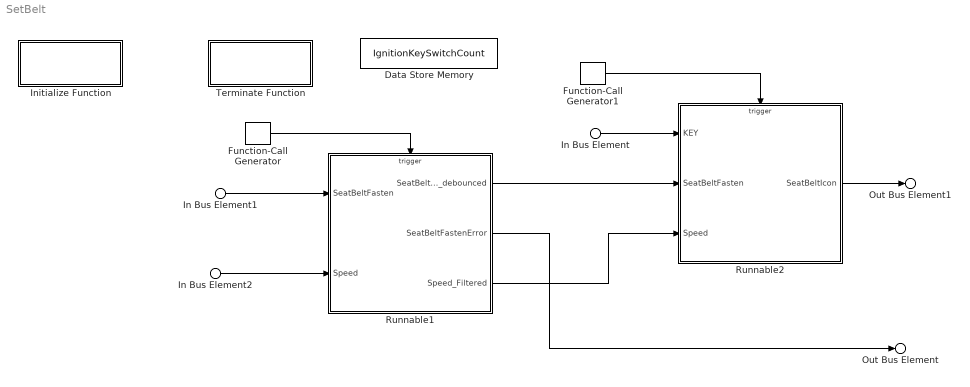
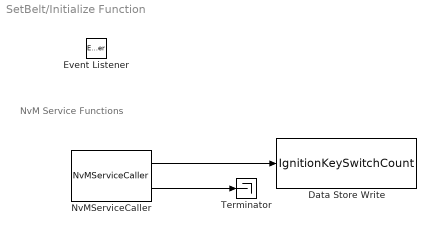
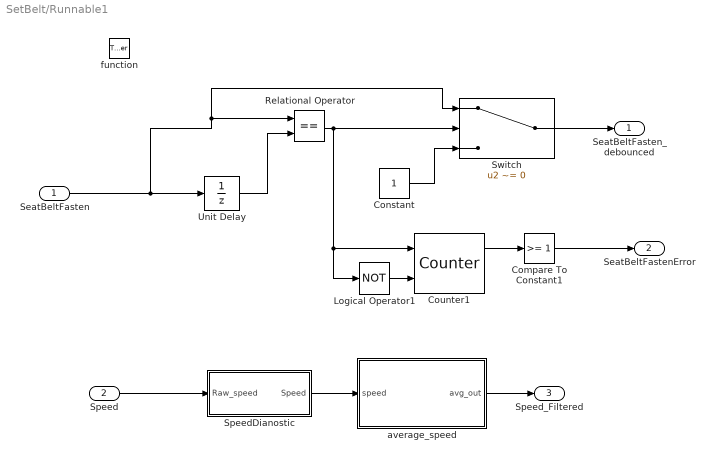
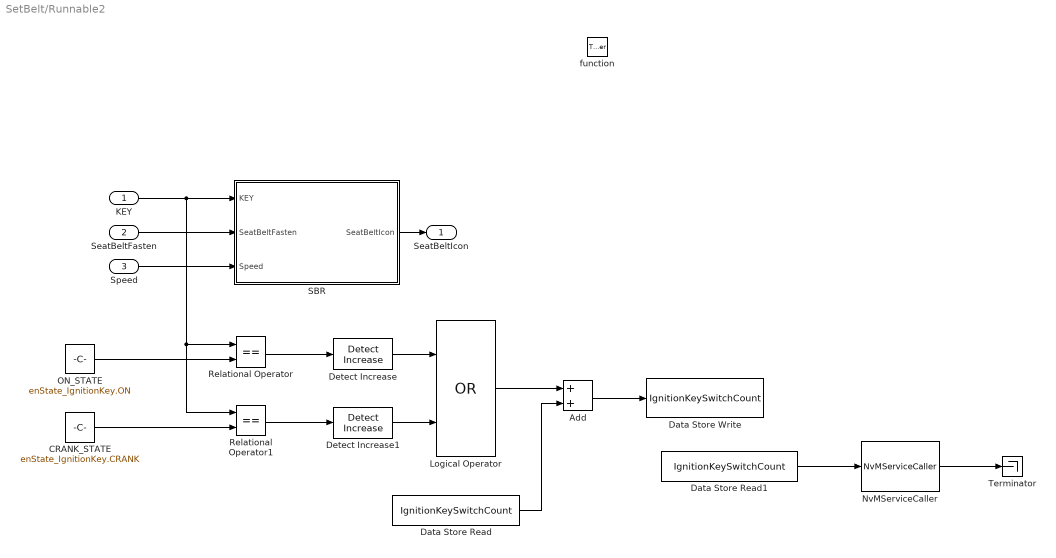
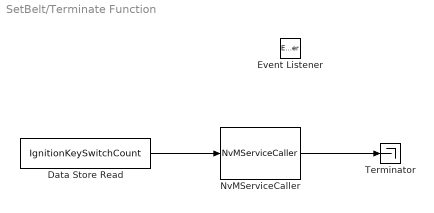
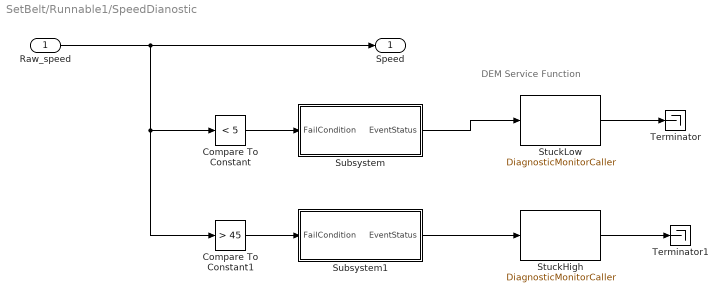
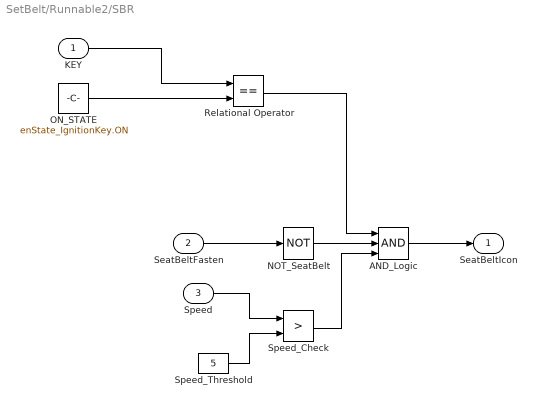
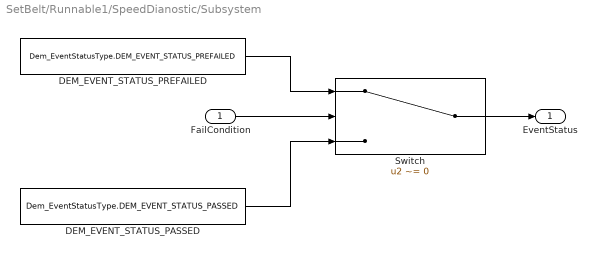
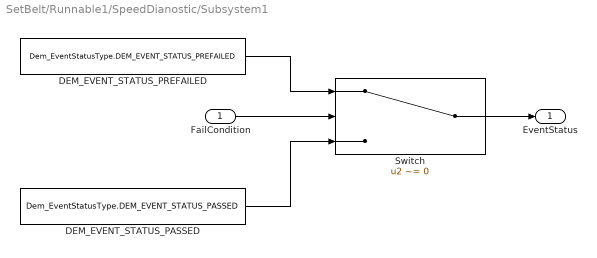
== matlab function SetBelt/Runnable1/average_speed ==
function avg_out = runningAverage(speed)
%#codegen

    persistent buffer index count

    N = 5;  

    if isempty(buffer)
        buffer = zeros(1, N);  % Buffer 5 phần tử
        index = 1;             % Vị trí ghi đầu tiên
        count = 0;             % Số lượng phần tử đã ghi
    end

    buffer(index) = double(speed);
    index = mod(index, N) + 1;
    count = min(count + 1, N);

    % Tính trung bình
    avg_out = uint16(sum(buffer) / count);
end

/*
 * File: SetBelt.c
 *
 * Code generated for Simulink model 'SetBelt'.
 *
 * Model version                  : 1.40
 * Simulink Coder version         : 24.1 (R2024a) 19-Nov-2023
 * C/C++ source code generated on : Mon Jul 14 22:59:24 2025
 *
 * Target selection: autosar.tlc
 * Embedded hardware selection: Intel->x86-64 (Windows64)
 * Code generation objectives: Unspecified
 * Validation result: Not run
 */

#include "SetBelt.h"
#include "MWDSP_EPH_F_B.h"
#include <math.h>
#include "rt_roundd.h"
#include "Platform_Types.h"
#include "Rte_Type.h"

/* PublicStructure Variables for Internal Data */
ARID_DEF_SetBelt_T SetBelt_ARID_DEF;   /* '<S2>/average_speed' */

/* Model step function */
void demo_Step(void)
{
  float64 r;
  uint16 tmp_0;
  Dem_EventStatusType tmp;
  boolean rtb_RelationalOperator;
  boolean rtb_RelationalOperator1;
  boolean rtb_RelationalOperator_c_tmp;
  boolean rtb_RelationalOperator_f;
  enState_IgnitionKey rtb_RelationalOperator_tmp;

  /* S-Function (fcgen): '<Root>/Function-Call Generator' incorporates:
   *  SubSystem: '<Root>/Runnable1'
   */
  /* RelationalOperator: '<S2>/Relational Operator' incorporates:
   *  Inport generated from: '<Root>/In Bus Element1'
   *  Switch: '<S2>/Switch'
   *  UnitDelay: '<S2>/Unit Delay'
   * */
  rtb_RelationalOperator_c_tmp =
    Rte_IRead_demo_Step_SeatBeltFasten_SeatBeltFasten();

  /* RelationalOperator: '<S2>/Relational Operator' incorporates:
   *  Inport generated from: '<Root>/In Bus Element1'
   *  UnitDelay: '<S2>/Unit Delay'
   */
  rtb_RelationalOperator_f = (rtb_RelationalOperator_c_tmp ==
    SetBelt_ARID_DEF.UnitDelay_DSTATE);

  /* Logic: '<S2>/Logical Operator1' */
  SetBelt_ARID_DEF.LogicalOperator1 = !rtb_RelationalOperator_f;

  /* S-Function (sdspcount2): '<S2>/Counter1' */
  if (MWDSP_EPH_F_B(SetBelt_ARID_DEF.LogicalOperator1,
                    &SetBelt_ARID_DEF.Counter1_RstEphState) != 0U) {
    SetBelt_ARID_DEF.Counter1_Count = 0U;
  }

  if (MWDSP_EPH_F_B(rtb_RelationalOperator_f,
                    &SetBelt_ARID_DEF.Counter1_ClkEphState) != 0U) {
    if (SetBelt_ARID_DEF.Counter1_Count < 3) {
      SetBelt_ARID_DEF.Counter1_Count++;
    } else {
      SetBelt_ARID_DEF.Counter1_Count = 0U;
    }
  }

  /* RelationalOperator: '<S9>/Compare' incorporates:
   *  Inport generated from: '<Root>/In Bus Element2'
   *  MATLAB Function: '<S2>/average_speed'
   */
  tmp_0 = Rte_IRead_demo_Step_Speed_Speed();

  /* Switch: '<S11>/Switch' incorporates:
   *  Constant: '<S11>/DEM_EVENT_STATUS_PASSED'
   *  Constant: '<S11>/DEM_EVENT_STATUS_PREFAILED'
   *  Constant: '<S9>/Constant'
   *  Inport generated from: '<Root>/In Bus Element2'
   *  RelationalOperator: '<S9>/Compare'
   */
  if (tmp_0 > 45) {
    tmp = DEM_EVENT_STATUS_PREFAILED;
  } else {
    tmp = DEM_EVENT_STATUS_PASSED;
  }

  /* End of Switch: '<S11>/Switch' */

  /* FunctionCaller: '<S6>/StuckHigh' */
  Rte_Call_SpeedStuckHigh_SetEventStatus(tmp);

  /* Switch: '<S10>/Switch' incorporates:
   *  Constant: '<S10>/DEM_EVENT_STATUS_PASSED'
   *  Constant: '<S10>/DEM_EVENT_STATUS_PREFAILED'
   *  Constant: '<S8>/Constant'
   *  Inport generated from: '<Root>/In Bus Element2'
   *  RelationalOperator: '<S8>/Compare'
   *  RelationalOperator: '<S9>/Compare'
   */
  if (tmp_0 < 5) {
    tmp = DEM_EVENT_STATUS_PREFAILED;
  } else {
    tmp = DEM_EVENT_STATUS_PASSED;
  }

  /* End of Switch: '<S10>/Switch' */

  /* FunctionCaller: '<S6>/StuckLow' */
  Rte_Call_SpeedStuckLow_SetEventStatus(tmp);

  /* MATLAB Function: '<S2>/average_speed' */
  SetBelt_ARID_DEF.buffer[(sint32)SetBelt_ARID_DEF.index - 1] = tmp_0;
  if (SetBelt_ARID_DEF.index == 0.0) {
    r = 0.0;
  } else {
    r = fmod(SetBelt_ARID_DEF.index, 5.0);
    if (r == 0.0) {
      r = 0.0;
    } else if (SetBelt_ARID_DEF.index < 0.0) {
      r += 5.0;
    }
  }

  SetBelt_ARID_DEF.index = r + 1.0;
  SetBelt_ARID_DEF.count = fmin(SetBelt_ARID_DEF.count + 1.0, 5.0);

  /* Update for UnitDelay: '<S2>/Unit Delay' */
  SetBelt_ARID_DEF.UnitDelay_DSTATE = rtb_RelationalOperator_c_tmp;

  /* End of Outputs for S-Function (fcgen): '<Root>/Function-Call Generator' */

  /* S-Function (fcgen): '<Root>/Function-Call Generator1' incorporates:
   *  SubSystem: '<Root>/Runnable2'
   */
  /* RelationalOperator: '<S3>/Relational Operator' incorporates:
   *  Inport generated from: '<Root>/In Bus Element'
   *  RelationalOperator: '<S14>/Relational Operator'
   *  RelationalOperator: '<S3>/Relational Operator1'
   */
  rtb_RelationalOperator_tmp = Rte_IRead_demo_Step_Key_Key();

  /* RelationalOperator: '<S3>/Relational Operator' incorporates:
   *  Constant: '<S3>/ON_STATE'
   *  Inport generated from: '<Root>/In Bus Element'
   */
  rtb_RelationalOperator = (rtb_RelationalOperator_tmp == ON);

  /* RelationalOperator: '<S3>/Relational Operator1' incorporates:
   *  Constant: '<S3>/CRANK_STATE'
   */
  rtb_RelationalOperator1 = (rtb_RelationalOperator_tmp == CRANK);

  /* DataStoreWrite: '<S3>/Data Store Write' incorporates:
   *  DataStoreRead: '<S3>/Data Store Read'
   *  Logic: '<S3>/Logical Operator'
   *  RelationalOperator: '<S12>/FixPt Relational Operator'
   *  RelationalOperator: '<S13>/FixPt Relational Operator'
   *  Sum: '<S3>/Add'
   *  UnitDelay: '<S12>/Delay Input1'
   *  UnitDelay: '<S13>/Delay Input1'
   *
   * Block description for '<S12>/Delay Input1':
   *
   *  Store in Global RAM
   *
   * Block description for '<S13>/Delay Input1':
   *
   *  Store in Global RAM
   */
  SetBelt_ARID_DEF.IgnitionKeySwitchCount = (uint8)((uint32)(((sint32)
    rtb_RelationalOperator > (sint32)SetBelt_ARID_DEF.DelayInput1_DSTATE) ||
    ((sint32)rtb_RelationalOperator1 > (sint32)
     SetBelt_ARID_DEF.DelayInput1_DSTATE_d)) +
    SetBelt_ARID_DEF.IgnitionKeySwitchCount);

  /* End of Outputs for S-Function (fcgen): '<Root>/Function-Call Generator1' */

  /* S-Function (fcgen): '<Root>/Function-Call Generator' incorporates:
   *  SubSystem: '<Root>/Runnable1'
   */
  /* MATLAB Function: '<S2>/average_speed' */
  r = rt_roundd(((((SetBelt_ARID_DEF.buffer[0] + SetBelt_ARID_DEF.buffer[1]) +
                   SetBelt_ARID_DEF.buffer[2]) + SetBelt_ARID_DEF.buffer[3]) +
                 SetBelt_ARID_DEF.buffer[4]) / SetBelt_ARID_DEF.count);
  if (r < 65536.0) {
    if (r >= 0.0) {
      tmp_0 = (uint16)r;
    } else {
      tmp_0 = 0U;
    }
  } else {
    tmp_0 = ((uint16)(65535U));
  }

  /* S-Function (fcgen): '<Root>/Function-Call Generator1' incorporates:
   *  SubSystem: '<Root>/Runnable2'
   */
  /* Logic: '<S14>/AND_Logic' incorporates:
   *  Constant: '<S14>/ON_STATE'
   *  Inport generated from: '<Root>/In Bus Element1'
   *  Logic: '<S14>/NOT_SeatBelt'
   *  MATLAB Function: '<S2>/average_speed'
   *  RelationalOperator: '<S14>/Relational Operator'
   *  RelationalOperator: '<S14>/Speed_Check'
   *  Switch: '<S2>/Switch'
   */
  SetBelt_ARID_DEF.AND_Logic = (tmp_0 > 5);
  SetBelt_ARID_DEF.AND_Logic = ((rtb_RelationalOperator_tmp == ON) &&
    (rtb_RelationalOperator_f && (!rtb_RelationalOperator_c_tmp)) &&
    SetBelt_ARID_DEF.AND_Logic);

  /* End of Outputs for S-Function (fcgen): '<Root>/Function-Call Generator' */

  /* FunctionCaller: '<S3>/NvMServiceCaller' */
  Rte_Call_IgnitionKeySwitchCount_WriteBlock
    (&SetBelt_ARID_DEF.IgnitionKeySwitchCount);

  /* Update for UnitDelay: '<S12>/Delay Input1'
   *
   * Block description for '<S12>/Delay Input1':
   *
   *  Store in Global RAM
   */
  SetBelt_ARID_DEF.DelayInput1_DSTATE = rtb_RelationalOperator;

  /* Update for UnitDelay: '<S13>/Delay Input1'
   *
   * Block description for '<S13>/Delay Input1':
   *
   *  Store in Global RAM
   */
  SetBelt_ARID_DEF.DelayInput1_DSTATE_d = rtb_RelationalOperator1;

  /* End of Outputs for S-Function (fcgen): '<Root>/Function-Call Generator1' */

  /* Outport generated from: '<Root>/Out Bus Element1' */
  Rte_IWrite_demo_Step_SeatbeltIcon_SeatbeltIcon(SetBelt_ARID_DEF.AND_Logic);

  /* S-Function (fcgen): '<Root>/Function-Call Generator' incorporates:
   *  SubSystem: '<Root>/Runnable1'
   */
  /* Outport generated from: '<Root>/Out Bus Element' incorporates:
   *  Constant: '<S5>/Constant'
   *  RelationalOperator: '<S5>/Compare'
   *  S-Function (sdspcount2): '<S2>/Counter1'
   */
  Rte_IWrite_demo_Step_SeatbeltFastenError_SeatbeltFastenError
    (SetBelt_ARID_DEF.Counter1_Count >= 1);

  /* End of Outputs for S-Function (fcgen): '<Root>/Function-Call Generator' */
}
